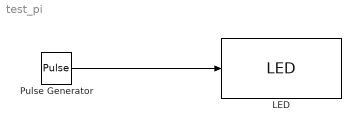
/*
 * test_pi.c
 *
 * Code generation for model "test_pi".
 *
 * Model version              : 1.1
 * Simulink Coder version : 9.3 (R2020a) 18-Nov-2019
 * C source code generated on : Sat May  8 13:17:54 2021
 *
 * Target selection: ert.tlc
 * Note: GRT includes extra infrastructure and instrumentation for prototyping
 * Embedded hardware selection: ARM Compatible->ARM Cortex
 * Code generation objectives: Unspecified
 * Validation result: Not run
 */

#include "test_pi.h"
#include "test_pi_private.h"

/* Block signals (default storage) */
B_test_pi_T test_pi_B;

/* Block states (default storage) */
DW_test_pi_T test_pi_DW;

/* Real-time model */
RT_MODEL_test_pi_T test_pi_M_;
RT_MODEL_test_pi_T *const test_pi_M = &test_pi_M_;

/* Forward declaration for local functions */
static void matlabCodegenHandle_matlabCodeg(codertarget_raspi_internal_LE_T *obj);
real_T rt_roundd_snf(real_T u)
{
  real_T y;
  if (fabs(u) < 4.503599627370496E+15) {
    if (u >= 0.5) {
      y = floor(u + 0.5);
    } else if (u > -0.5) {
      y = u * 0.0;
    } else {
      y = ceil(u - 0.5);
    }
  } else {
    y = u;
  }

  return y;
}

static void matlabCodegenHandle_matlabCodeg(codertarget_raspi_internal_LE_T *obj)
{
  if (!obj->matlabCodegenIsDeleted) {
    obj->matlabCodegenIsDeleted = true;
  }
}

/* Model step function */
void test_pi_step(void)
{
  real_T rtb_PulseGenerator;
  uint8_T tmp;
  static const char_T tmp_0[69] = { 'I', 'n', 'v', 'a', 'l', 'i', 'd', ' ', 'L',
    'E', 'D', ' ', 'v', 'a', 'l', 'u', 'e', '.', ' ', 'L', 'E', 'D', ' ', 'v',
    'a', 'l', 'u', 'e', ' ', 'm', 'u', 's', 't', ' ', 'b', 'e', ' ', 'a', ' ',
    'l', 'o', 'g', 'i', 'c', 'a', 'l', ' ', 'v', 'a', 'l', 'u', 'e', ' ', '(',
    't', 'r', 'u', 'e', ' ', 'o', 'r', ' ', 'f', 'a', 'l', 's', 'e', ')', '.' };

  static const char_T tmp_1[5] = "none";
  char_T tmp_2[5];
  int32_T i;

  /* DiscretePulseGenerator: '<Root>/Pulse Generator' */
  rtb_PulseGenerator = (test_pi_DW.clockTickCounter <
                        test_pi_P.PulseGenerator_Duty) &&
    (test_pi_DW.clockTickCounter >= 0) ? test_pi_P.PulseGenerator_Amp : 0.0;
  if (test_pi_DW.clockTickCounter >= test_pi_P.PulseGenerator_Period - 1.0) {
    test_pi_DW.clockTickCounter = 0;
  } else {
    test_pi_DW.clockTickCounter++;
  }

  /* End of DiscretePulseGenerator: '<Root>/Pulse Generator' */

  /* MATLABSystem: '<Root>/LED' */
  if ((rtb_PulseGenerator == 0.0) || (rtb_PulseGenerator == 1.0)) {
  } else {
    memcpy(&test_pi_B.cv[0], &tmp_0[0], 69U * sizeof(char_T));
    perror(test_pi_B.cv);
  }

  for (i = 0; i < 5; i++) {
    tmp_2[i] = tmp_1[i];
  }

  EXT_LED_setTrigger(0U, tmp_2);
  rtb_PulseGenerator = rt_roundd_snf(rtb_PulseGenerator);
  if (rtb_PulseGenerator < 256.0) {
    if (rtb_PulseGenerator >= 0.0) {
      tmp = (uint8_T)rtb_PulseGenerator;
    } else {
      tmp = 0U;
    }
  } else {
    tmp = MAX_uint8_T;
  }

  EXT_LED_write(0U, tmp);

  /* End of MATLABSystem: '<Root>/LED' */

  /* External mode */
  rtExtModeUploadCheckTrigger(1);

  {                                    /* Sample time: [0.1s, 0.0s] */
    rtExtModeUpload(0, (real_T)test_pi_M->Timing.taskTime0);
  }

  /* signal main to stop simulation */
  {                                    /* Sample time: [0.1s, 0.0s] */
    if ((rtmGetTFinal(test_pi_M)!=-1) &&
        !((rtmGetTFinal(test_pi_M)-test_pi_M->Timing.taskTime0) >
          test_pi_M->Timing.taskTime0 * (DBL_EPSILON))) {
      rtmSetErrorStatus(test_pi_M, "Simulation finished");
    }

    if (rtmGetStopRequested(test_pi_M)) {
      rtmSetErrorStatus(test_pi_M, "Simulation finished");
    }
  }

  /* Update absolute time for base rate */
  /* The "clockTick0" counts the number of times the code of this task has
   * been executed. The absolute time is the multiplication of "clockTick0"
   * and "Timing.stepSize0". Size of "clockTick0" ensures timer will not
   * overflow during the application lifespan selected.
   * Timer of this task consists of two 32 bit unsigned integers.
   * The two integers represent the low bits Timing.clockTick0 and the high bits
   * Timing.clockTickH0. When the low bit overflows to 0, the high bits increment.
   */
  if (!(++test_pi_M->Timing.clockTick0)) {
    ++test_pi_M->Timing.clockTickH0;
  }

  test_pi_M->Timing.taskTime0 = test_pi_M->Timing.clockTick0 *
    test_pi_M->Timing.stepSize0 + test_pi_M->Timing.clockTickH0 *
    test_pi_M->Timing.stepSize0 * 4294967296.0;
}
